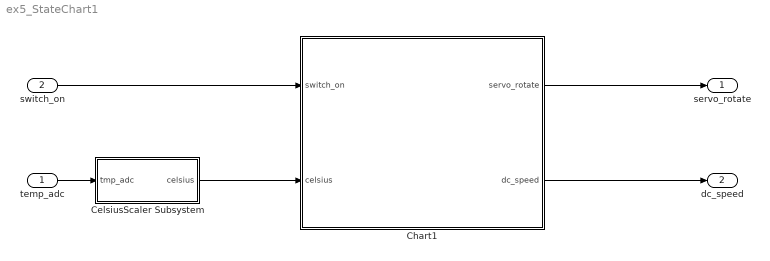
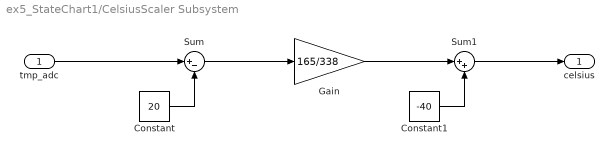
== stateflow chart ex5_StateChart1/Chart1 ==
  state DC_Motor [parallel]
    state check
    check -> check [order 1] : [ctr_dc < (DC_PERIOD / STEP_SIZE) - 1]{ctr_dc = ctr_dc + 1}
    (default) -> check
    check -> check [order 2] : [ctr_dc >= (DC_PERIOD / STEP_SIZE) - 1]{dc_speed = (celsius - 20) * DC_MAX_SPEED / (DC_MAX_RPM / 60); ctr_dc = 0;}
  state Servo_Motor [parallel]
    state Natural
    state ClockWise
    state Counter_ClockWise
    (default) -> Natural
    Natural -> Natural [order 2] : [ctr_servo < ((SLOW_MODE_DURATION - (switch_on * (SLOW_MODE_DURATION - FAST_MODE_DURATION))) / STEP_SIZE) - 1]{ctr_servo = ctr_servo + 1}
    Counter_ClockWise -> Natural [order 2] : [ctr_servo >= (SERVO_MAX_ANGLE / SERVO_ANGLE_CHANGE) - 1]{servo_rotate = 0; ctr_servo = 0}
    Natural -> ClockWise [order 1] : [ctr_servo >= ((SLOW_MODE_DURATION - (switch_on * (SLOW_MODE_DURATION - FAST_MODE_DURATION))) / STEP_SIZE) - 1]{servo_rotate = 1; ctr_servo = 0}
    ClockWise -> ClockWise [order 2] : [ctr_servo < (SERVO_MAX_ANGLE / SERVO_ANGLE_CHANGE) - 1]{ctr_servo = ctr_servo + 1}
    ClockWise -> Counter_ClockWise [order 1] : [ctr_servo >= (SERVO_MAX_ANGLE / SERVO_ANGLE_CHANGE) - 1]{servo_rotate = -1; ctr_servo = 0}
    Counter_ClockWise -> Counter_ClockWise [order 1] : [ctr_servo < (SERVO_MAX_ANGLE / SERVO_ANGLE_CHANGE) - 1]{ctr_servo = ctr_servo + 1}
  data: SLOW_MODE_DURATION constant double =10000; servo_rotate output =0; FAST_MODE_DURATION constant double =5000; STEP_SIZE constant double =100; switch_on input; ctr_dc local =0; ctr_servo local =0; SERVO_MAX_ANGLE constant double =180; SERVO_ANGLE_CHANGE constant double =10; DC_PERIOD local =1000; dc_speed output =0; celsius input; DC_MAX_RPM constant double =16530; DC_MAX_SPEED constant double =255

/*
 * File: ex5_StateChart1.c
 *
 * Code generated for Simulink model 'ex5_StateChart1'.
 *
 * Model version                  : 1.21
 * Simulink Coder version         : 24.1 (R2024a) 19-Nov-2023
 * C/C++ source code generated on : Fri Dec 27 20:27:26 2024
 *
 * Target selection: ert.tlc
 * Embedded hardware selection: Atmel->AVR
 * Code generation objectives: Unspecified
 * Validation result: Not run
 */

#include "ex5_StateChart1.h"
#include "rtwtypes.h"

/* Named constants for Chart: '<Root>/Chart1' */
#define ex5_StateC_IN_Counter_ClockWise ((uint8_T)2U)
#define ex5_StateCha_FAST_MODE_DURATION (5000.0)
#define ex5_StateCha_SLOW_MODE_DURATION (10000.0)
#define ex5_StateChart1_DC_MAX_SPEED   (255.0)
#define ex5_StateChart1_IN_ClockWise   ((uint8_T)1U)
#define ex5_StateChart1_IN_Natural     ((uint8_T)3U)
#define ex5_StateChart1_STEP_SIZE      (100.0)

/* Block states (default storage) */
DW_ex5_StateChart1_T ex5_StateChart1_DW;

/* External inputs (root inport signals with default storage) */
ExtU_ex5_StateChart1_T ex5_StateChart1_U;

/* External outputs (root outports fed by signals with default storage) */
ExtY_ex5_StateChart1_T ex5_StateChart1_Y;

/* Real-time model */
static RT_MODEL_ex5_StateChart1_T ex5_StateChart1_M_;
RT_MODEL_ex5_StateChart1_T *const ex5_StateChart1_M = &ex5_StateChart1_M_;

/* Model step function */
void ex5_StateChart1_step(void)
{
  real_T tmp;

  /* Chart: '<Root>/Chart1' incorporates:
   *  Inport: '<Root>/switch_on'
   */
  if (ex5_StateChart1_DW.is_active_c2_ex5_StateChart1 == 0U) {
    ex5_StateChart1_DW.is_active_c2_ex5_StateChart1 = 1U;
    ex5_StateChart1_DW.is_Servo_Motor = ex5_StateChart1_IN_Natural;
  } else {
    switch (ex5_StateChart1_DW.is_Servo_Motor) {
     case ex5_StateChart1_IN_ClockWise:
      if (ex5_StateChart1_DW.ctr_servo >= 17.0) {
        /* Outport: '<Root>/servo_rotate' */
        ex5_StateChart1_Y.servo_rotate = -1.0;
        ex5_StateChart1_DW.ctr_servo = 0.0;
        ex5_StateChart1_DW.is_Servo_Motor = ex5_StateC_IN_Counter_ClockWise;
      } else if (ex5_StateChart1_DW.ctr_servo < 17.0) {
        ex5_StateChart1_DW.ctr_servo++;
        ex5_StateChart1_DW.is_Servo_Motor = ex5_StateChart1_IN_ClockWise;
      }
      break;

     case ex5_StateC_IN_Counter_ClockWise:
      if (ex5_StateChart1_DW.ctr_servo < 17.0) {
        ex5_StateChart1_DW.ctr_servo++;
        ex5_StateChart1_DW.is_Servo_Motor = ex5_StateC_IN_Counter_ClockWise;
      } else if (ex5_StateChart1_DW.ctr_servo >= 17.0) {
        /* Outport: '<Root>/servo_rotate' */
        ex5_StateChart1_Y.servo_rotate = 0.0;
        ex5_StateChart1_DW.ctr_servo = 0.0;
        ex5_StateChart1_DW.is_Servo_Motor = ex5_StateChart1_IN_Natural;
      }
      break;

     default:
      /* case IN_Natural: */
      tmp = (ex5_StateCha_SLOW_MODE_DURATION - ex5_StateChart1_U.switch_on *
             ex5_StateCha_FAST_MODE_DURATION) / ex5_StateChart1_STEP_SIZE - 1.0;
      if (ex5_StateChart1_DW.ctr_servo >= tmp) {
        /* Outport: '<Root>/servo_rotate' */
        ex5_StateChart1_Y.servo_rotate = 1.0;
        ex5_StateChart1_DW.ctr_servo = 0.0;
        ex5_StateChart1_DW.is_Servo_Motor = ex5_StateChart1_IN_ClockWise;
      } else if (ex5_StateChart1_DW.ctr_servo < tmp) {
        ex5_StateChart1_DW.ctr_servo++;
        ex5_StateChart1_DW.is_Servo_Motor = ex5_StateChart1_IN_Natural;
      }
      break;
    }

    tmp = ex5_StateChart1_DW.DC_PERIOD / ex5_StateChart1_STEP_SIZE - 1.0;
    if (ex5_StateChart1_DW.ctr_dc < tmp) {
      ex5_StateChart1_DW.ctr_dc++;
    } else if (ex5_StateChart1_DW.ctr_dc >= tmp) {
      /* Outport: '<Root>/dc_speed' incorporates:
       *  Constant: '<S1>/Constant'
       *  Constant: '<S1>/Constant1'
       *  Gain: '<S1>/Gain'
       *  Inport: '<Root>/temp_adc'
       *  Sum: '<S1>/Sum'
       *  Sum: '<S1>/Sum1'
       */
      ex5_StateChart1_Y.dc_speed = (((ex5_StateChart1_U.temp_adc -
        ex5_StateChart1_P.Constant_Value) * ex5_StateChart1_P.Gain_Gain +
        ex5_StateChart1_P.Constant1_Value) - 20.0) *
        ex5_StateChart1_DC_MAX_SPEED / 275.5;
      ex5_StateChart1_DW.ctr_dc = 0.0;
    }
  }

  /* End of Chart: '<Root>/Chart1' */
}
